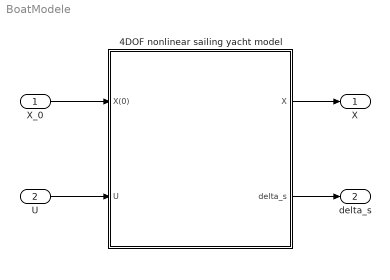
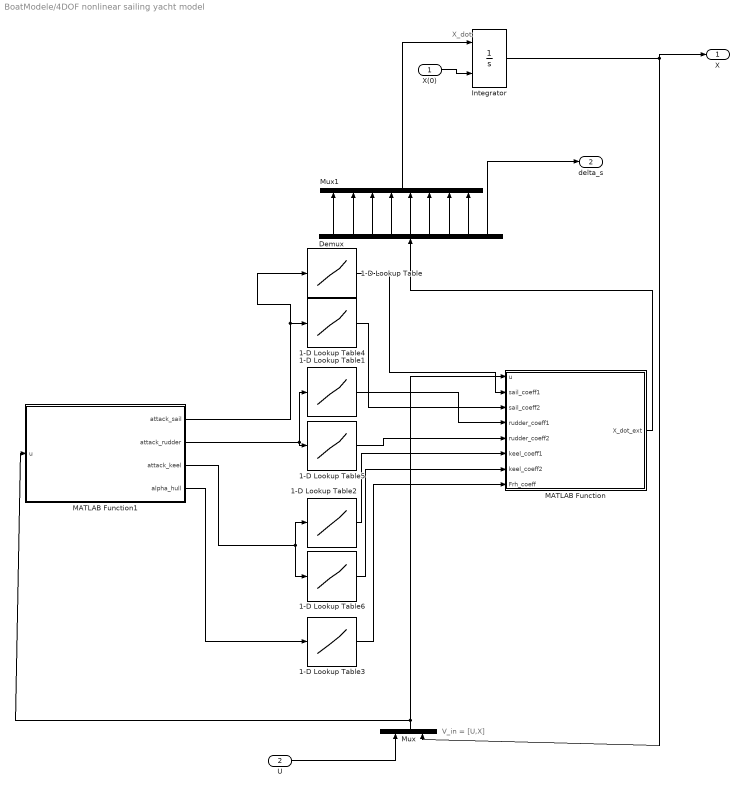
== matlab function BoatModele/4DOF nonlinear sailing yacht model/MATLAB Function1 ==
% interpreted Matlab function "f.m" for the Simulink file "SailingYachtModel.slx"
% This function describes the dynamics of a 4DOF sailing yacht model
% and gives the derivative of the state X and the sail angle delta_s.
% The input vector V_in contains the system state and the control input vector. 
%
% For the model description, notations, equations and parameters,
% see Xiao and Jouffroy, "Modeling and nonlinear heading control of sailing
% yachts", IEEE Journal of Oceanic Engineering, vol. 39, no. 2., pp. 256-268, 2014.
% 
% Jerome Jouffroy, Jiaxi He and Lin Xiao, 2014.
% University of Southern Denmark.



function [attack_sail,attack_rudder,attack_keel,alpha_hull]=sailcoeff_attack(u)
%#codegen

% use the system parameters
par = modeleBoat();

V_in = u;
% retrieve the system state from the field input vector "V_in"
x = V_in(5);
y = V_in(6);
phi = V_in(7);
psi = V_in(8);
u = V_in(9);
v = V_in(10);
p = V_in(11);
r = V_in(12);
nu = [ u ; v ; p ; r ];

% retrieve the input signals from the vector "V_in"
delta_r = V_in(1);
delta_sbar = V_in(2);
y_w = V_in(3);
u_s = V_in(4);


% evaluate the matrix M and C in the model
M_RB = [ par.m 0 0 0 ; 0 par.m 0 0 ; 0 0 par.Ixx -par.Ixz ; 0 0 -par.Ixz par.Izz];
C_RB = [0 -par.m*r 0 0 ; par.m*r 0 0 0 ; 0 0 0 0 ; 0 0 0 0];

M_A = [par.a11 0 0 0;0 par.a22 par.a24 par.a26;0 par.a24 par.a44 par.a46;0 par.a26 par.a46 par.a66];
C_A = [0  0 0 -par.a22*nu(2)-par.a24*nu(3)-par.a26*nu(4) ; 0 0 0 par.a11*nu(1) ; 0 0 0 0 ; par.a22*nu(2)+par.a24*nu(3)+par.a26*nu(4) -par.a11*nu(1) 0 0];

M = M_RB + M_A;

% calculate the tau vector, ie forces and moments generated from:
% the sail
v_t = [ par.vt*cos(par.alpha_w); par.vt*sin(par.alpha_w); 0 ];
v_tw = log(abs(par.z_s)*cos(phi)/par.h0)/log(par.h1/par.h0)*v_t;
R1 = [ cos(-psi) -sin(-psi) 0; sin(-psi) cos(-psi) 0; 0 0 1];
R2 = [ 1 0 0 ; 0 cos(-phi) -sin(-phi); 0 sin(-phi) cos(-phi)];
v_tb = R2*R1*v_tw; % wind expressed in the body frame
V_in = [ u ; v ; 0 ];
V_awb = v_tb - V_in - cross([p;0;r],[par.xs;par.ys;par.zs]);
V_awu = V_awb(1);
V_awv = V_awb(2);
alpha_aw = atan2(V_awv,-V_awu);

%% (sail luffing or not)
if alpha_aw-u_s>delta_sbar
    delta_s = delta_sbar;
elseif alpha_aw-u_s<-delta_sbar
    delta_s = -delta_sbar;
else
    delta_s = alpha_aw-u_s;
end
delta_s = delta_s + u_s;

alpha_as = alpha_aw - delta_s;

attack_sail = alpha_as;

% fit the input angle of attack into the interval [-pi,pi]
if attack_sail > pi
    attack_sail = mod(attack_sail+pi,2*pi) - pi;
else
    if attack_sail < -pi
        attack_sail = mod(attack_sail-pi,-2*pi) + pi;
    end
end

%% the rudder
v_aru = -u+r*par.yr;
v_arv = -v-r*par.xr + p*par.zr;
alpha_ar = atan2(v_arv,-v_aru);
alpha_a = alpha_ar-delta_r;

attack_rudder = alpha_a;

% fit the input angle of attack into the interval [-pi,pi]
if attack_rudder > pi
    attack_rudder = mod(attack_rudder+pi,2*pi) - pi;
else
    if attack_rudder < -pi
        attack_rudder = mod(attack_rudder-pi,-2*pi) + pi;
    end
end

%% the keel
v_aku = -u + r*par.yk;
v_akv = -v - r*par.xk+p*par.zk;
alpha_ak = atan2(v_akv,-v_aku);
alpha_e = alpha_ak;

attack_keel = alpha_e;

% fit the input angle of attack into the interval [-pi,pi]
if attack_keel > pi
    attack_keel = mod(attack_keel+pi,2*pi) - pi;
else
    if attack_keel < -pi
        attack_keel = mod(attack_keel-pi,-2*pi) + pi;
    end
end

%% from the hull
v_ahu = -u + r*par.yh;
v_ahv = (-v-r*par.xh + p*par.zh)/cos(phi);
v_ah = sqrt(v_aku^2+v_akv^2);
alpha_ah = atan2(v_ahv,-v_ahu);
alpha_hull = v_ah;

== matlab function BoatModele/4DOF nonlinear sailing yacht model/MATLAB Function ==
% interpreted Matlab function "f.m" for the Simulink file "SailingYachtModel.slx"
% This function describes the dynamics of a 4DOF sailing yacht model
% and gives the derivative of the state X and the sail angle delta_s.
% The input vector V_in contains the system state and the control input vector. 
%
% For the model description, notations, equations and parameters,
% see Xiao and Jouffroy, "Modeling and nonlinear heading control of sailing
% yachts", IEEE Journal of Oceanic Engineering, vol. 39, no. 2., pp. 256-268, 2014.
% 
% Jerome Jouffroy, Jiaxi He and Lin Xiao, 2014.
% University of Southern Denmark.



function X_dot_ext  =fcn(u,sail_coeff1,sail_coeff2,rudder_coeff1,rudder_coeff2,keel_coeff1,keel_coeff2,Frh_coeff)
%#codegen

% use the system parameters
par = modeleBoat();

V_in = u;
% retrieve the system state from the field input vector "V_in"
x = V_in(5);
y = V_in(6);
phi = V_in(7);
psi = V_in(8);
u = V_in(9);
v = V_in(10);
p = V_in(11);
r = V_in(12);
nu = [ u ; v ; p ; r ];

% retrieve the input signals from the vector "V_in"
delta_r = V_in(1);
delta_sbar = V_in(2);
y_w = V_in(3);
u_s = V_in(4);

% evaluate the matrix M and C in the model
M_RB = [ par.m 0 0 0 ; 0 par.m 0 0 ; 0 0 par.Ixx -par.Ixz ; 0 0 -par.Ixz par.Izz];
C_RB = [0 -par.m*r 0 0 ; par.m*r 0 0 0 ; 0 0 0 0 ; 0 0 0 0];

M_A = [par.a11 0 0 0;0 par.a22 par.a24 par.a26;0 par.a24 par.a44 par.a46;0 par.a26 par.a46 par.a66];
C_A = [0  0 0 -par.a22*nu(2)-par.a24*nu(3)-par.a26*nu(4) ; 0 0 0 par.a11*nu(1) ; 0 0 0 0 ; par.a22*nu(2)+par.a24*nu(3)+par.a26*nu(4) -par.a11*nu(1) 0 0];

M = M_RB + M_A;

% calculate the tau vector, ie forces and moments generated from:
% the sail
v_t = [ par.vt*cos(par.alpha_w); par.vt*sin(par.alpha_w); 0 ];
v_tw = log(abs(par.z_s)*cos(phi)/par.h0)/log(par.h1/par.h0)*v_t;
R1 = [ cos(-psi) -sin(-psi) 0; sin(-psi) cos(-psi) 0; 0 0 1];
R2 = [ 1 0 0 ; 0 cos(-phi) -sin(-phi); 0 sin(-phi) cos(-phi)];
v_tb = R2*R1*v_tw; % wind expressed in the body frame
V_in = [ u ; v ; 0 ];
V_awb = v_tb - V_in - cross([p;0;r],[par.xs;par.ys;par.zs]);
V_awu = V_awb(1);
V_awv = V_awb(2);
alpha_aw = atan2(V_awv,-V_awu);

% (sail luffing or not)
if alpha_aw-u_s>delta_sbar
    delta_s = delta_sbar;
elseif alpha_aw-u_s<-delta_sbar
    delta_s = -delta_sbar;
else
    delta_s = alpha_aw-u_s;
end
delta_s = delta_s + u_s;

alpha_as = alpha_aw - delta_s;

Cls = sail_coeff1;
Cds = sail_coeff2;

Ls = 0.5*par.rho_a*par.As*(V_awu^2+V_awv^2)*Cls;
Ds = 0.5*par.rho_a*par.As*(V_awu^2+V_awv^2)*Cds;

tau_sail = [Ls*sin(alpha_aw)-Ds*cos(alpha_aw); Ls*cos(alpha_aw)+Ds*sin(alpha_aw);-(Ls*cos(alpha_aw)+Ds*sin(alpha_aw))*par.zs; -(Ls*sin(alpha_aw)-Ds*cos(alpha_aw))*par.Xce*sin(delta_s)+(Ls*cos(alpha_aw)+Ds*sin(alpha_aw))*(par.Xm-par.Xce*cos(delta_s))];
Mzs = tau_sail(4);

% the rudder
v_aru = -u+r*par.yr;
v_arv = -v-r*par.xr + p*par.zr;
alpha_ar = atan2(v_arv,-v_aru);
alpha_a = alpha_ar-delta_r;

%[Clr,Cdr] = ruddercoef(alpha_a);
Clr = rudder_coeff1;
Cdr = rudder_coeff2;

Cdr = Cdr+Clr^2*par.Ar/(pi*2*par.zeta_r*par.d_r^2);

Lr = 0.5*par.rho_w*par.Ar*(v_aru^2+v_arv^2)*Clr;
Dr = 0.5*par.rho_w*par.Ar*(v_aru^2+v_arv^2)*Cdr;

tau_rudder = [Lr*sin(alpha_ar)-Dr*cos(alpha_ar); Lr*cos(alpha_ar)+Dr*sin(alpha_ar); -(Lr*cos(alpha_ar)+Dr*sin(alpha_ar))*par.zr; (Lr*cos(alpha_ar)+Dr*sin(alpha_ar))*par.xr];
Mzr = tau_rudder(4);

% the tau vector is finally given by:
tau = tau_sail + tau_rudder;

% calculate the damping forces and moments:
% from the keel
v_aku = -u + r*par.yk;
v_akv = -v - r*par.xk+p*par.zk;
alpha_ak = atan2(v_akv,-v_aku);
alpha_e = alpha_ak;

Clk = keel_coeff1;
Cdk = keel_coeff2;

Cdk = Cdk + Clk^2*par.Ak/(pi*2*par.zeta_k*par.d_k^2);

Lk = 0.5*par.rho_w*par.Ak*(v_aku^2+v_akv^2)*Clk;
Dk = 0.5*par.rho_w*par.Ak*(v_aku^2+v_akv^2)*Cdk;

D_keel = [ -Lk*sin(alpha_ak)+Dk*cos(alpha_ak); -Lk*cos(alpha_ak)-Dk*sin(alpha_ak); -(-Lk*cos(alpha_ak)-Dk*sin(alpha_ak))*par.zk; -(Lk*cos(alpha_ak)+Dk*sin(alpha_ak))*par.xk];

% from the hull
v_ahu = -u + r*par.yh;
v_ahv = (-v-r*par.xh + p*par.zh)/cos(phi);
v_ah = sqrt(v_aku^2+v_akv^2);
alpha_ah = atan2(v_ahv,-v_ahu);

Frh = Frh_coeff;

D_hull = [Frh*cos(alpha_ah);-Frh*sin(alpha_ah)*cos(phi); Frh*sin(alpha_ah)*cos(phi)*par.zh; -Frh*sin(alpha_ah)*cos(phi)*par.xh];

% from heel and yaw
% (compute first eta_dot and thereby phi_dot and psi_dot)
J = [cos(psi) -sin(psi)*cos(phi) 0 0; sin(psi) cos(psi)*cos(phi) 0 0; 0 0 1 0; 0 0 0 cos(phi)];
eta_dot = J*nu;
phi_dot = eta_dot(3);
psi_dot = eta_dot(4);

D_heelandyaw = [0;0;par.c*phi_dot*abs(phi_dot);par.d*psi_dot*abs(psi_dot)*cos(phi)]; 

% compute total damping vector D
D = D_keel + D_hull + D_heelandyaw;

% righting moment plus internal moving mass system (ie transversal weight)
phi_deg = phi*180/pi;
M_xw = -y_w*par.w_c*par.y_bm*cos(phi);
M_zw = -y_w*par.w_c*par.x_c*sin(abs(phi));
G = [ 0 ; 0 ; par.a*phi_deg^2+par.b*phi_deg + M_xw ; M_zw];

% computation of nu_dot
nu_dot = -M\(C_RB*nu+C_A*nu)-M\D-M\G+M\tau; 
 

% output the derivative of the state extended with the sail angle
X_dot_ext = [ eta_dot   ; 
              nu_dot   ;
              delta_s];

/*
 * BoatModele.cpp
 *
 * Code generation for model "BoatModele".
 *
 * Model version              : 1.11
 * Simulink Coder version : 8.6 (R2014a) 27-Dec-2013
 * C++ source code generated on : Sun May  3 10:05:32 2015
 *
 * Target selection: grt.tlc
 * Note: GRT includes extra infrastructure and instrumentation for prototyping
 * Embedded hardware selection: 32-bit Generic
 * Code generation objectives: Unspecified
 * Validation result: Not run
 */
#include "BoatModele.h"
#include "BoatModele_private.h"

/* Block signals (auto storage) */
B_BoatModele_T BoatModele_B;

/* Continuous states */
X_BoatModele_T BoatModele_X;

/* Block states (auto storage) */
DW_BoatModele_T BoatModele_DW;

/* External inputs (root inport signals with auto storage) */
ExtU_BoatModele_T BoatModele_U;

/* External outputs (root outports fed by signals with auto storage) */
ExtY_BoatModele_T BoatModele_Y;

/* Real-time model */
RT_MODEL_BoatModele_T BoatModele_M_;
RT_MODEL_BoatModele_T *const BoatModele_M = &BoatModele_M_;

/* Forward declaration for local functions */
static void BoatModele_mldivide(const real_T A[16], real_T B[4]);

/* n-D Spline interpolation function */
real_T look_SplNBinXZcd(uint32_T numDims, const real_T* u, const
  rt_LUTSplineWork * const SWork)
{
  /*
   *   n-D column-major table lookup operating on real_T with:
   *       - Spline interpolation
   *       - Linear extrapolation
   *       - Binary breakpoint search
   *       - Index search starts at the same place each time
   */
  rt_LUTnWork * const TWork_look = SWork->m_TWork;
  real_T* const fraction = (real_T*) TWork_look->m_bpLambda;
  uint32_T* const bpIdx = TWork_look->m_bpIndex;
  const uint32_T* const maxIndex = TWork_look->m_maxIndex;
  uint32_T k;
  for (k = 0U; k < numDims; k++) {
    const real_T* const bpData = ((const real_T * const *)
      TWork_look->m_bpDataSet)[k];
    bpIdx[k] = plook_binx(u[k], &bpData[0], maxIndex[k], &fraction[k]);
  }

  return(intrp_NSplcd(numDims, SWork, 2U));
}

/*
 * Second derivative initialization function for spline
 * for last dimension.
 */
void rt_Spline2Derivd(const real_T *x, const real_T *y, uint32_T n, real_T *u,
                      real_T *y2)
{
  real_T p, qn, sig, un;
  uint32_T n1, i, k;
  n1 = n - 1U;
  y2[0U] = 0.0;
  u[0U] = 0.0;
  for (i = 1U; i < n1; i++) {
    real_T dxm1 = x[i] - x[i - 1U];
    real_T dxp1 = x[i + 1U] - x[i];
    real_T dxpm = dxp1 + dxm1;
    sig = dxm1 / dxpm;
    p = (sig * y2[i - 1U]) + 2.0;
    y2[i] = (sig - 1.0) / p;
    u[i] = ((y[i + 1U] - y[i]) / dxp1) - ((y[i] - y[i - 1U]) / dxm1);
    u[i] = (((6.0 * u[i]) / dxpm) - (sig * u[i - 1U])) / p;
  }

  qn = 0.0;
  un = 0.0;
  y2[n1] = (un - (qn * u[n1 - 1U])) / ((qn * y2[n1 - 1U]) + 1.0);
  for (k = n1; k > 0U; k--) {
    y2[k-1U] = (y2[k-1U] * y2[k]) + u[k-1U];
  }

  return;
}

/* n-D natural spline calculation function */
real_T intrp_NSplcd(uint32_T numDims, const rt_LUTSplineWork * const splWork,
                    uint32_T extrapMethod)
{
  uint32_T il;
  uint32_T iu, k, i;
  real_T h, s, p, smsq, pmsq;

  /* intermediate results work areas "this" and "next" */
  const rt_LUTnWork *TWork_interp = (const rt_LUTnWork *)splWork->m_TWork;
  const real_T *fraction = (real_T *) TWork_interp->m_bpLambda;
  const real_T *yp = (real_T *) TWork_interp->m_tableData;
  real_T *yyA = (real_T *) splWork->m_yyA;
  real_T *yyB = (real_T *) splWork->m_yyB;
  real_T *yy2 = (real_T *) splWork->m_yy2;
  real_T *up = (real_T *) splWork->m_up;
  real_T *y2 = (real_T *) splWork->m_y2;
  const real_T **bpDataSet = (const real_T **) TWork_interp->m_bpDataSet;
  const real_T *xp = bpDataSet[0U];
  real_T *yy = yyA;
  uint32_T bufBank = 0U;
  uint32_T len = TWork_interp->m_maxIndex[0U] + 1U;

  /* If table and bps are tunable calculate 1st dim 2nd deriv */
  /* Generate first dimension's second derivatives */
  for (i = 0U; i < splWork->m_numYWorkElts[0U]; i++) {
    rt_Spline2Derivd(xp, yp, len, up, y2);
    yp = &yp[len];
    y2 = &y2[len];
  }

  /* Set pointers back to beginning */
  yp = (const real_T *) TWork_interp->m_tableData;
  y2 = (real_T *) splWork->m_y2;

  /* Generate at-point splines in each dimension */
  for (k = 0U; k < numDims; k++ ) {
    /* this dimension's input setup */
    xp = bpDataSet[k];
    len = TWork_interp->m_maxIndex[k] + 1U;
    il = TWork_interp->m_bpIndex[k];
    iu = il + 1U;
    h = xp[iu] - xp[il];
    p = fraction[k];
    s = 1.0 - p;
    pmsq = p * ((p*p) - 1.0);
    smsq = s * ((s*s) - 1.0);

    /*
     * Calculate spline curves for input in this
     * dimension at each value of the higher
     * other dimensions\' points in the table.
     */
    if ((p > 1.0) && (extrapMethod == 2U) ) {
      real_T slope;
      for (i = 0U; i < splWork->m_numYWorkElts[k]; i++) {
        slope = (yp[iu] - yp[il]) + ((y2[il]*h*h)*(1.0/6.0));
        yy[i] = yp[iu] + (slope * (p-1.0));
        yp = &yp[len];
        y2 = &y2[len];
      }
    } else if ((p < 0.0) && (extrapMethod == 2U) ) {
      real_T slope;
      for (i = 0U; i < splWork->m_numYWorkElts[k]; i++) {
        slope = (yp[iu] - yp[il]) - ((y2[iu]*h*h)*(1.0/6.0));
        yy[i] = yp[il] + (slope * p);
        yp = &yp[len];
        y2 = &y2[len];
      }
    } else {
      for (i = 0U; i < splWork->m_numYWorkElts[k]; i++) {
        yy[i] = yp[il] + p * (yp[iu] - yp[il]) +
          ((smsq * y2[il] + pmsq * y2[iu])*h*h)*(1.0/6.0);
        yp = &yp[len];
        y2 = &y2[len];
      }
    }

    /* set pointers to new result and calculate second derivatives */
    yp = yy;
    y2 = yy2;
    if (splWork->m_numYWorkElts[k+1U] > 0U ) {
      uint32_T nextLen = TWork_interp->m_maxIndex[k+1U] + 1U;
      const real_T *nextXp = bpDataSet[k+1U];
      for (i = 0U; i < splWork->m_numYWorkElts[k+1U]; i++) {
        rt_Spline2Derivd(nextXp, yp, nextLen, up, y2);
        yp = &yp[nextLen];
        y2 = &y2[nextLen];
      }
    }

    /*
     * Set work vectors yp, y2 and yy for next iteration;
     * the yy just calculated becomes the yp in the
     * next iteration, y2 was just calculated for these
     * new points and the yy buffer is swapped to the space
     * for storing the next iteration\'s results.
     */
    yp = yy;
    y2 = yy2;

    /*
     * Swap buffers for next dimension and
     * toggle bufBank for next iteration.
     */
    if (bufBank == 0U) {
      yy = yyA;
      bufBank = 1U;
    } else {
      yy = yyB;
      bufBank = 0U;
    }
  }

  return( yp[0U] );
}

real_T look1_binlxpw(real_T u0, const real_T bp0[], const real_T table[],
                     uint32_T maxIndex)
{
  real_T frac;
  uint32_T iRght;
  uint32_T iLeft;
  uint32_T bpIdx;

  /* Lookup 1-D
     Search method: 'binary'
     Use previous index: 'off'
     Interpolation method: 'Linear'
     Extrapolation method: 'Linear'
     Use last breakpoint for index at or above upper limit: 'off'
     Remove protection against out-of-range input in generated code: 'off'
   */
  /* Prelookup - Index and Fraction
     Index Search method: 'binary'
     Extrapolation method: 'Linear'
     Use previous index: 'off'
     Use last breakpoint for index at or above upper limit: 'off'
     Remove protection against out-of-range input in generated code: 'off'
   */
  if (u0 <= bp0[0U]) {
    iLeft = 0U;
    frac = (u0 - bp0[0U]) / (bp0[1U] - bp0[0U]);
  } else if (u0 < bp0[maxIndex]) {
    /* Binary Search */
    bpIdx = maxIndex >> 1U;
    iLeft = 0U;
    iRght = maxIndex;
    while (iRght - iLeft > 1U) {
      if (u0 < bp0[bpIdx]) {
        iRght = bpIdx;
      } else {
        iLeft = bpIdx;
      }

      bpIdx = (iRght + iLeft) >> 1U;
    }

    frac = (u0 - bp0[iLeft]) / (bp0[iLeft + 1U] - bp0[iLeft]);
  } else {
    iLeft = maxIndex - 1U;
    frac = (u0 - bp0[maxIndex - 1U]) / (bp0[maxIndex] - bp0[maxIndex - 1U]);
  }

  /* Interpolation 1-D
     Interpolation method: 'Linear'
     Use last breakpoint for index at or above upper limit: 'off'
     Overflow mode: 'portable wrapping'
   */
  return (table[iLeft + 1U] - table[iLeft]) * frac + table[iLeft];
}

uint32_T plook_binx(real_T u, const real_T bp[], uint32_T maxIndex, real_T
                    *fraction)
{
  uint32_T bpIndex;

  /* Prelookup - Index and Fraction
     Index Search method: 'binary'
     Extrapolation method: 'Linear'
     Use previous index: 'off'
     Use last breakpoint for index at or above upper limit: 'off'
     Remove protection against out-of-range input in generated code: 'off'
   */
  if (u <= bp[0U]) {
    bpIndex = 0U;
    *fraction = (u - bp[0U]) / (bp[1U] - bp[0U]);
  } else if (u < bp[maxIndex]) {
    bpIndex = binsearch_u32d(u, bp, maxIndex >> 1U, maxIndex);
    *fraction = (u - bp[bpIndex]) / (bp[bpIndex + 1U] - bp[bpIndex]);
  } else {
    bpIndex = maxIndex - 1U;
    *fraction = (u - bp[maxIndex - 1U]) / (bp[maxIndex] - bp[maxIndex - 1U]);
  }

  return bpIndex;
}

uint32_T binsearch_u32d(real_T u, const real_T bp[], uint32_T startIndex,
  uint32_T maxIndex)
{
  uint32_T iRght;
  uint32_T iLeft;
  uint32_T bpIdx;

  /* Binary Search */
  bpIdx = startIndex;
  iLeft = 0U;
  iRght = maxIndex;
  while (iRght - iLeft > 1U) {
    if (u < bp[bpIdx]) {
      iRght = bpIdx;
    } else {
      iLeft = bpIdx;
    }

    bpIdx = (iRght + iLeft) >> 1U;
  }

  return iLeft;
}

/*
 * This function updates continuous states using the ODE3 fixed-step
 * solver algorithm
 */
static void rt_ertODEUpdateContinuousStates(RTWSolverInfo *si )
{
  /* Solver Matrices */
  static const real_T rt_ODE3_A[3] = {
    1.0/2.0, 3.0/4.0, 1.0
  };

  static const real_T rt_ODE3_B[3][3] = {
    { 1.0/2.0, 0.0, 0.0 },

    { 0.0, 3.0/4.0, 0.0 },

    { 2.0/9.0, 1.0/3.0, 4.0/9.0 }
  };

  time_T t = rtsiGetT(si);
  time_T tnew = rtsiGetSolverStopTime(si);
  time_T h = rtsiGetStepSize(si);
  real_T *x = rtsiGetContStates(si);
  ODE3_IntgData *id = (ODE3_IntgData *)rtsiGetSolverData(si);
  real_T *y = id->y;
  real_T *f0 = id->f[0];
  real_T *f1 = id->f[1];
  real_T *f2 = id->f[2];
  real_T hB[3];
  int_T i;
  int_T nXc = 8;
  rtsiSetSimTimeStep(si,MINOR_TIME_STEP);

  /* Save the state values at time t in y, we'll use x as ynew. */
  (void) memcpy(y, x,
                (uint_T)nXc*sizeof(real_T));

  /* Assumes that rtsiSetT and ModelOutputs are up-to-date */
  /* f0 = f(t,y) */
  rtsiSetdX(si, f0);
  BoatModele_derivatives();

  /* f(:,2) = feval(odefile, t + hA(1), y + f*hB(:,1), args(:)(*)); */
  hB[0] = h * rt_ODE3_B[0][0];
  for (i = 0; i < nXc; i++) {
    x[i] = y[i] + (f0[i]*hB[0]);
  }

  rtsiSetT(si, t + h*rt_ODE3_A[0]);
  rtsiSetdX(si, f1);
  BoatModele_step();
  BoatModele_derivatives();

  /* f(:,3) = feval(odefile, t + hA(2), y + f*hB(:,2), args(:)(*)); */
  for (i = 0; i <= 1; i++) {
    hB[i] = h * rt_ODE3_B[1][i];
  }

  for (i = 0; i < nXc; i++) {
    x[i] = y[i] + (f0[i]*hB[0] + f1[i]*hB[1]);
  }

  rtsiSetT(si, t + h*rt_ODE3_A[1]);
  rtsiSetdX(si, f2);
  BoatModele_step();
  BoatModele_derivatives();

  /* tnew = t + hA(3);
     ynew = y + f*hB(:,3); */
  for (i = 0; i <= 2; i++) {
    hB[i] = h * rt_ODE3_B[2][i];
  }

  for (i = 0; i < nXc; i++) {
    x[i] = y[i] + (f0[i]*hB[0] + f1[i]*hB[1] + f2[i]*hB[2]);
  }

  rtsiSetT(si, tnew);
  rtsiSetSimTimeStep(si,MAJOR_TIME_STEP);
}

real_T rt_atan2d_snf(real_T u0, real_T u1)
{
  real_T y;
  int32_T u0_0;
  int32_T u1_0;
  if (rtIsNaN(u0) || rtIsNaN(u1)) {
    y = (rtNaN);
  } else if (rtIsInf(u0) && rtIsInf(u1)) {
    if (u0 > 0.0) {
      u0_0 = 1;
    } else {
      u0_0 = -1;
    }

    if (u1 > 0.0) {
      u1_0 = 1;
    } else {
      u1_0 = -1;
    }

    y = atan2((real_T)u0_0, (real_T)u1_0);
  } else if (u1 == 0.0) {
    if (u0 > 0.0) {
      y = RT_PI / 2.0;
    } else if (u0 < 0.0) {
      y = -(RT_PI / 2.0);
    } else {
      y = 0.0;
    }
  } else {
    y = atan2(u0, u1);
  }

  return y;
}

real_T rt_roundd_snf(real_T u)
{
  real_T y;
  if (fabs(u) < 4.503599627370496E+15) {
    if (u >= 0.5) {
      y = floor(u + 0.5);
    } else if (u > -0.5) {
      y = u * 0.0;
    } else {
      y = ceil(u - 0.5);
    }
  } else {
    y = u;
  }

  return y;
}

/* Function for MATLAB Function: '<S1>/MATLAB Function' */
static void BoatModele_mldivide(const real_T A[16], real_T B[4])
{
  real_T temp;
  real_T b_A[16];
  int8_T ipiv[4];
  int32_T j;
  int32_T c;
  int32_T ix;
  real_T s;
  int32_T jy;
  int32_T c_ix;
  int32_T d;
  int32_T ijA;
  int32_T b_kAcol;
  memcpy(&b_A[0], &A[0], sizeof(real_T) << 4U);
  ipiv[0] = 1;
  ipiv[1] = 2;
  ipiv[2] = 3;
  for (j = 0; j < 3; j++) {
    c = j * 5;
    jy = 0;
    ix = c;
    temp = fabs(b_A[c]);
    for (b_kAcol = 2; b_kAcol <= 4 - j; b_kAcol++) {
      ix++;
      s = fabs(b_A[ix]);
      if (s > temp) {
        jy = b_kAcol - 1;
        temp = s;
      }
    }

    if (b_A[c + jy] != 0.0) {
      if (jy != 0) {
        ipiv[j] = (int8_T)((j + jy) + 1);
        b_kAcol = j + jy;
        temp = b_A[j];
        b_A[j] = b_A[b_kAcol];
        b_A[b_kAcol] = temp;
        ix = j + 4;
        b_kAcol += 4;
        temp = b_A[ix];
        b_A[ix] = b_A[b_kAcol];
        b_A[b_kAcol] = temp;
        ix += 4;
        b_kAcol += 4;
        temp = b_A[ix];
        b_A[ix] = b_A[b_kAcol];
        b_A[b_kAcol] = temp;
        ix += 4;
        b_kAcol += 4;
        temp = b_A[ix];
        b_A[ix] = b_A[b_kAcol];
        b_A[b_kAcol] = temp;
      }

      ix = (c - j) + 4;
      for (b_kAcol = c + 1; b_kAcol + 1 <= ix; b_kAcol++) {
        b_A[b_kAcol] /= b_A[c];
      }
    }

    b_kAcol = c;
    jy = c + 4;
    for (ix = 1; ix <= 3 - j; ix++) {
      temp = b_A[jy];
      if (b_A[jy] != 0.0) {
        c_ix = c + 1;
        d = (b_kAcol - j) + 8;
        for (ijA = 5 + b_kAcol; ijA + 1 <= d; ijA++) {
          b_A[ijA] += b_A[c_ix] * -temp;
          c_ix++;
        }
      }

      jy += 4;
      b_kAcol += 4;
    }
  }

  if (ipiv[0] != 1) {
    temp = B[0];
    B[0] = B[ipiv[0] - 1];
    B[ipiv[0] - 1] = temp;
  }

  if (ipiv[1] != 2) {
    temp = B[1];
    B[1] = B[ipiv[1] - 1];
    B[ipiv[1] - 1] = temp;
  }

  if (ipiv[2] != 3) {
    temp = B[2];
    B[2] = B[ipiv[2] - 1];
    B[ipiv[2] - 1] = temp;
  }

  if (B[0] != 0.0) {
    for (jy = 1; jy + 1 < 5; jy++) {
      B[jy] -= B[0] * b_A[jy];
    }
  }

  if (B[1] != 0.0) {
    for (jy = 2; jy + 1 < 5; jy++) {
      B[jy] -= b_A[jy + 4] * B[1];
    }
  }

  if (B[2] != 0.0) {
    for (jy = 3; jy + 1 < 5; jy++) {
      B[jy] -= b_A[jy + 8] * B[2];
    }
  }

  if (B[3] != 0.0) {
    B[3] /= b_A[15];
    for (jy = 0; jy + 1 < 4; jy++) {
      B[jy] -= b_A[jy + 12] * B[3];
    }
  }

  if (B[2] != 0.0) {
    B[2] /= b_A[10];
    for (jy = 0; jy + 1 < 3; jy++) {
      B[jy] -= b_A[jy + 8] * B[2];
    }
  }

  if (B[1] != 0.0) {
    B[1] /= b_A[5];
    for (jy = 0; jy + 1 < 2; jy++) {
      B[jy] -= b_A[jy + 4] * B[1];
    }
  }

  if (B[0] != 0.0) {
    B[0] /= b_A[0];
  }
}

/* Model step function */
void BoatModele_step(void)
{
  /* local block i/o variables */
  real_T rtb_Integrator[8];
  real_T rtb_DLookupTable;
  real_T rtb_DLookupTable4;
  real_T rtb_DLookupTable1;
  real_T rtb_DLookupTable5;
  real_T rtb_DLookupTable2;
  real_T rtb_DLookupTable6;
  real_T rtb_attack_sail;
  real_T rtb_attack_rudder;
  real_T rtb_attack_keel;
  real_T alpha_aw;
  real_T delta_s;
  real_T alpha_as;
  real_T v_aku;
  real_T v_akv;
  real_T alpha_ak;
  real_T nu[4];
  real_T Ls;
  real_T Ds;
  real_T alpha_ar;
  real_T Lr;
  real_T Dr;
  real_T Lk;
  real_T D_hull[4];
  real_T eta_dot[4];
  real_T nu_dot[4];
  static const real_T b[16] = { 26870.0, 0.0, 0.0, 0.0, 0.0, 43330.0, -13160.0,
    -6190.0, 0.0, -13160.0, 240190.0, 2550.0, 0.0, -6190.0, 2550.0, 126410.0 };

  static const real_T c[16] = { -26870.0, -0.0, -0.0, -0.0, -0.0, -43330.0,
    13160.0, 6190.0, -0.0, 13160.0, -240190.0, -2550.0, -0.0, 6190.0, -2550.0,
    -126410.0 };

  real_T g[4];
  real_T rtb_TmpSignalConversionAtSFunct[12];
  real_T rtb_DLookupTable3;
  int32_T i;
  real_T c_0[9];
  real_T tmp[9];
  real_T c_1[9];
  real_T c_2[3];
  real_T e[9];
  real_T tmp_0[9];
  int32_T i_0;
  real_T tmp_1[16];
  real_T tmp_2[16];
  real_T tmp_3[16];
  real_T tmp_4[4];
  real_T tmp_5[4];
  real_T V_awb_idx_1;
  if (rtmIsMajorTimeStep(BoatModele_M)) {
    /* set solver stop time */
    if (!(BoatModele_M->Timing.clockTick0+1)) {
      rtsiSetSolverStopTime(&BoatModele_M->solverInfo,
                            ((BoatModele_M->Timing.clockTickH0 + 1) *
        BoatModele_M->Timing.stepSize0 * 4294967296.0));
    } else {
      rtsiSetSolverStopTime(&BoatModele_M->solverInfo,
                            ((BoatModele_M->Timing.clockTick0 + 1) *
        BoatModele_M->Timing.stepSize0 + BoatModele_M->Timing.clockTickH0 *
        BoatModele_M->Timing.stepSize0 * 4294967296.0));
    }
  }                                    /* end MajorTimeStep */

  /* Update absolute time of base rate at minor time step */
  if (rtmIsMinorTimeStep(BoatModele_M)) {
    BoatModele_M->Timing.t[0] = rtsiGetT(&BoatModele_M->solverInfo);
  }

  /* Integrator: '<S1>/Integrator' */
  if (BoatModele_DW.Integrator_IWORK.IcNeedsLoading) {
    {
      int_T i1;
      real_T *xc = &BoatModele_X.Integrator_CSTATE[0];
      const real_T *u1 = &BoatModele_U.X_0[0];
      for (i1=0; i1 < 8; i1++) {
        xc[i1] = u1[i1];
      }
    }
  }

  {
    int_T i1;
    real_T *y0 = &rtb_Integrator[0];
    real_T *xc = &BoatModele_X.Integrator_CSTATE[0];
    for (i1=0; i1 < 8; i1++) {
      y0[i1] = xc[i1];
    }
  }

  /* SignalConversion: '<S3>/TmpSignal ConversionAt SFunction Inport1' incorporates:
   *  Inport: '<Root>/U'
   *  MATLAB Function: '<S1>/MATLAB Function1'
   */
  rtb_TmpSignalConversionAtSFunct[0] = BoatModele_U.U[0];
  rtb_TmpSignalConversionAtSFunct[1] = BoatModele_U.U[1];
  rtb_TmpSignalConversionAtSFunct[3] = BoatModele_U.U[3];
  for (i = 0; i < 8; i++) {
    /* Outport: '<Root>/X' */
    BoatModele_Y.X[i] = rtb_Integrator[i];
    rtb_TmpSignalConversionAtSFunct[i + 4] = rtb_Integrator[i];
  }

  /* End of SignalConversion: '<S3>/TmpSignal ConversionAt SFunction Inport1' */

  /* MATLAB Function: '<S1>/MATLAB Function1' */
  /* MATLAB Function '4DOF nonlinear sailing yacht model/MATLAB Function1': '<S3>:1' */
  /*  interpreted Matlab function "f.m" for the Simulink file "SailingYachtModel.slx" */
  /*  This function describes the dynamics of a 4DOF sailing yacht model */
  /*  and gives the derivative of the state X and the sail angle delta_s. */
  /*  The input vector V_in contains the system state and the control input vector.  */
  /*  */
  /*  For the model description, notations, equations and parameters, */
  /*  see Xiao and Jouffroy, "Modeling and nonlinear heading control of sailing */
  /*  yachts", IEEE Journal of Oceanic Engineering, vol. 39, no. 2., pp. 256-268, 2014. */
  /*   */
  /*  Jerome Jouffroy, Jiaxi He and Lin Xiao, 2014. */
  /*  University of Southern Denmark. */
  /*  use the system parameters */
  /*  retrieve the system state from the field input vector "V_in" */
  /* '<S3>:1:25' */
  /* '<S3>:1:26' */
  /* '<S3>:1:27' */
  /* '<S3>:1:28' */
  /* '<S3>:1:29' */
  /* '<S3>:1:30' */
  /*  retrieve the input signals from the vector "V_in" */
  /* '<S3>:1:34' */
  /* '<S3>:1:35' */
  /* '<S3>:1:37' */
  /*  evaluate the matrix M and C in the model */
  /*  calculate the tau vector, ie forces and moments generated from: */
  /*  the sail */
  /* '<S3>:1:52' */
  alpha_as = log(11.58 * cos(rtb_TmpSignalConversionAtSFunct[6]) / 0.0005) /
    10.050181931686932;

  /* '<S3>:1:53' */
  /* '<S3>:1:54' */
  /* '<S3>:1:55' */
  /*  wind expressed in the body frame */
  /* '<S3>:1:56' */
  /* '<S3>:1:57' */
  c_0[0] = 1.0;
  c_0[3] = 0.0;
  c_0[6] = 0.0;
  c_0[1] = 0.0;
  c_0[4] = cos(-rtb_TmpSignalConversionAtSFunct[6]);
  c_0[7] = -sin(-rtb_TmpSignalConversionAtSFunct[6]);
  c_0[2] = 0.0;
  c_0[5] = sin(-rtb_TmpSignalConversionAtSFunct[6]);
  c_0[8] = cos(-rtb_TmpSignalConversionAtSFunct[6]);
  tmp[0] = cos(-rtb_TmpSignalConversionAtSFunct[7]);
  tmp[3] = -sin(-rtb_TmpSignalConversionAtSFunct[7]);
  tmp[6] = 0.0;
  tmp[1] = sin(-rtb_TmpSignalConversionAtSFunct[7]);
  tmp[4] = cos(-rtb_TmpSignalConversionAtSFunct[7]);
  tmp[7] = 0.0;
  tmp[2] = 0.0;
  tmp[5] = 0.0;
  tmp[8] = 1.0;
  for (i = 0; i < 3; i++) {
    for (i_0 = 0; i_0 < 3; i_0++) {
      c_1[i + 3 * i_0] = 0.0;
      c_1[i + 3 * i_0] += tmp[3 * i_0] * c_0[i];
      c_1[i + 3 * i_0] += tmp[3 * i_0 + 1] * c_0[i + 3];
      c_1[i + 3 * i_0] += tmp[3 * i_0 + 2] * c_0[i + 6];
    }
  }

  for (i = 0; i < 3; i++) {
    c_2[i] = c_1[i + 6] * (alpha_as * 0.0) + (c_1[i + 3] * (alpha_as *
      1.2246467991473533E-15) + alpha_as * -10.0 * c_1[i]);
  }

  /* '<S3>:1:58' */
  /* '<S3>:1:59' */
  /* '<S3>:1:60' */
  alpha_aw = rt_atan2d_snf((c_2[1] - rtb_TmpSignalConversionAtSFunct[9]) -
    (rtb_TmpSignalConversionAtSFunct[11] * 0.0 -
     rtb_TmpSignalConversionAtSFunct[10] * -11.58), -((c_2[0] -
    rtb_TmpSignalConversionAtSFunct[8]) - (-0.0 -
    rtb_TmpSignalConversionAtSFunct[11] * 0.0)));

  /* % (sail luffing or not) */
  if (alpha_aw - rtb_TmpSignalConversionAtSFunct[3] >
      rtb_TmpSignalConversionAtSFunct[1]) {
    /* '<S3>:1:63' */
    /* '<S3>:1:64' */
    delta_s = rtb_TmpSignalConversionAtSFunct[1];
  } else if (alpha_aw - rtb_TmpSignalConversionAtSFunct[3] <
             -rtb_TmpSignalConversionAtSFunct[1]) {
    /* '<S3>:1:65' */
    /* '<S3>:1:66' */
    delta_s = -rtb_TmpSignalConversionAtSFunct[1];
  } else {
    /* '<S3>:1:68' */
    delta_s = alpha_aw - rtb_TmpSignalConversionAtSFunct[3];
  }

  /* '<S3>:1:70' */
  delta_s += rtb_TmpSignalConversionAtSFunct[3];

  /* '<S3>:1:72' */
  alpha_as = alpha_aw - delta_s;

  /* '<S3>:1:74' */
  rtb_attack_sail = alpha_as;

  /*  fit the input angle of attack into the interval [-pi,pi] */
  if (alpha_as > 3.1415926535897931) {
    /* '<S3>:1:77' */
    /* '<S3>:1:78' */
    alpha_as = (alpha_as + 3.1415926535897931) / 6.2831853071795862;
    if (fabs(alpha_as - rt_roundd_snf(alpha_as)) <= 2.2204460492503131E-16 *
        alpha_as) {
      alpha_as = 0.0;
    } else {
      alpha_as = (alpha_as - floor(alpha_as)) * 6.2831853071795862;
    }

    rtb_attack_sail = alpha_as - 3.1415926535897931;
  } else {
    if (alpha_as < -3.1415926535897931) {
      /* '<S3>:1:80' */
      /* '<S3>:1:81' */
      alpha_as = (alpha_as - 3.1415926535897931) / -6.2831853071795862;
      if (fabs(alpha_as - rt_roundd_snf(alpha_as)) <= 2.2204460492503131E-16 *
          alpha_as) {
        alpha_as = 0.0;
      } else {
        alpha_as = (alpha_as - floor(alpha_as)) * -6.2831853071795862;
      }

      rtb_attack_sail = alpha_as + 3.1415926535897931;
    }
  }

  /* % the rudder */
  /* '<S3>:1:86' */
  /* '<S3>:1:87' */
  /* '<S3>:1:88' */
  /* '<S3>:1:89' */
  alpha_as = rt_atan2d_snf((-rtb_TmpSignalConversionAtSFunct[9] -
    rtb_TmpSignalConversionAtSFunct[11] * -8.2) +
    rtb_TmpSignalConversionAtSFunct[10] * -0.78,
    -(rtb_TmpSignalConversionAtSFunct[11] * 0.0 +
      -rtb_TmpSignalConversionAtSFunct[8])) - rtb_TmpSignalConversionAtSFunct[0];

  /* '<S3>:1:91' */
  rtb_attack_rudder = alpha_as;

  /*  fit the input angle of attack into the interval [-pi,pi] */
  if (alpha_as > 3.1415926535897931) {
    /* '<S3>:1:94' */
    /* '<S3>:1:95' */
    alpha_as = (alpha_as + 3.1415926535897931) / 6.2831853071795862;
    if (fabs(alpha_as - rt_roundd_snf(alpha_as)) <= 2.2204460492503131E-16 *
        alpha_as) {
      alpha_as = 0.0;
    } else {
      alpha_as = (alpha_as - floor(alpha_as)) * 6.2831853071795862;
    }

    rtb_attack_rudder = alpha_as - 3.1415926535897931;
  } else {
    if (alpha_as < -3.1415926535897931) {
      /* '<S3>:1:97' */
      /* '<S3>:1:98' */
      alpha_as = (alpha_as - 3.1415926535897931) / -6.2831853071795862;
      if (fabs(alpha_as - rt_roundd_snf(alpha_as)) <= 2.2204460492503131E-16 *
          alpha_as) {
        alpha_as = 0.0;
      } else {
        alpha_as = (alpha_as - floor(alpha_as)) * -6.2831853071795862;
      }

      rtb_attack_rudder = alpha_as + 3.1415926535897931;
    }
  }

  /* % the keel */
  /* '<S3>:1:103' */
  v_aku = rtb_TmpSignalConversionAtSFunct[11] * 0.0 +
    -rtb_TmpSignalConversionAtSFunct[8];

  /* '<S3>:1:104' */
  v_akv = (-rtb_TmpSignalConversionAtSFunct[9] -
           rtb_TmpSignalConversionAtSFunct[11] * 0.0) +
    rtb_TmpSignalConversionAtSFunct[10] * -0.58;

  /* '<S3>:1:105' */
  alpha_ak = rt_atan2d_snf(v_akv, -v_aku);

  /* '<S3>:1:108' */
  rtb_attack_keel = alpha_ak;

  /*  fit the input angle of attack into the interval [-pi,pi] */
  if (alpha_ak > 3.1415926535897931) {
    /* '<S3>:1:111' */
    /* '<S3>:1:112' */
    alpha_as = (alpha_ak + 3.1415926535897931) / 6.2831853071795862;
    if (fabs(alpha_as - rt_roundd_snf(alpha_as)) <= 2.2204460492503131E-16 *
        alpha_as) {
      alpha_as = 0.0;
    } else {
      alpha_as = (alpha_as - floor(alpha_as)) * 6.2831853071795862;
    }

    rtb_attack_keel = alpha_as - 3.1415926535897931;
  } else {
    if (alpha_ak < -3.1415926535897931) {
      /* '<S3>:1:114' */
      /* '<S3>:1:115' */
      alpha_as = (alpha_ak - 3.1415926535897931) / -6.2831853071795862;
      if (fabs(alpha_as - rt_roundd_snf(alpha_as)) <= 2.2204460492503131E-16 *
          alpha_as) {
        alpha_as = 0.0;
      } else {
        alpha_as = (alpha_as - floor(alpha_as)) * -6.2831853071795862;
      }

      rtb_attack_keel = alpha_as + 3.1415926535897931;
    }
  }

  /* % from the hull */
  /* '<S3>:1:122' */
  /* '<S3>:1:124' */

  /* Lookup_n-D: '<S1>/1-D Lookup Table'
   * About '<S1>/1-D Lookup Table':
   *       Table size:  100
   *    Interpolation:  Spline
   *    Extrapolation:  Linear
   *   Breakpt Search:  Binary
   *    Breakpt Cache:  OFF
   */
  rtb_DLookupTable = look_SplNBinXZcd(1U, &rtb_attack_sail, (rt_LUTSplineWork*)
    &BoatModele_DW.SWork[0]);

  /* Lookup_n-D: '<S1>/1-D Lookup Table4'
   * About '<S1>/1-D Lookup Table4':
   *       Table size:  100
   *    Interpolation:  Spline
   *    Extrapolation:  Linear
   *   Breakpt Search:  Binary
   *    Breakpt Cache:  OFF
   */
  rtb_DLookupTable4 = look_SplNBinXZcd(1U, &rtb_attack_sail, (rt_LUTSplineWork*)
    &BoatModele_DW.SWork_k[0]);

  /* Lookup_n-D: '<S1>/1-D Lookup Table1'
   * About '<S1>/1-D Lookup Table1':
   *       Table size:  100
   *    Interpolation:  Spline
   *    Extrapolation:  Linear
   *   Breakpt Search:  Binary
   *    Breakpt Cache:  OFF
   */
  rtb_DLookupTable1 = look_SplNBinXZcd(1U, &rtb_attack_rudder, (rt_LUTSplineWork*)
    &BoatModele_DW.SWork_j[0]);

  /* Lookup_n-D: '<S1>/1-D Lookup Table5'
   * About '<S1>/1-D Lookup Table5':
   *       Table size:  100
   *    Interpolation:  Spline
   *    Extrapolation:  Linear
   *   Breakpt Search:  Binary
   *    Breakpt Cache:  OFF
   */
  rtb_DLookupTable5 = look_SplNBinXZcd(1U, &rtb_attack_rudder, (rt_LUTSplineWork*)
    &BoatModele_DW.SWork_kl[0]);

  /* Lookup_n-D: '<S1>/1-D Lookup Table2'
   * About '<S1>/1-D Lookup Table2':
   *       Table size:  100
   *    Interpolation:  Spline
   *    Extrapolation:  Linear
   *   Breakpt Search:  Binary
   *    Breakpt Cache:  OFF
   */
  rtb_DLookupTable2 = look_SplNBinXZcd(1U, &rtb_attack_keel, (rt_LUTSplineWork*)
    &BoatModele_DW.SWork_a[0]);

  /* Lookup_n-D: '<S1>/1-D Lookup Table6'
   * About '<S1>/1-D Lookup Table6':
   *       Table size:  100
   *    Interpolation:  Spline
   *    Extrapolation:  Linear
   *   Breakpt Search:  Binary
   *    Breakpt Cache:  OFF
   */
  rtb_DLookupTable6 = look_SplNBinXZcd(1U, &rtb_attack_keel, (rt_LUTSplineWork*)
    &BoatModele_DW.SWork_e[0]);

  /* Lookup_n-D: '<S1>/1-D Lookup Table3' incorporates:
   *  MATLAB Function: '<S1>/MATLAB Function1'
   */
  rtb_DLookupTable3 = look1_binlxpw(sqrt(v_aku * v_aku + v_akv * v_akv),
    *(real_T (*)[100])&BoatModele_P.hull_xdata[0], *(real_T (*)[100])&
    BoatModele_P.hull_ydata[0], 99U);

  /* SignalConversion: '<S2>/TmpSignal ConversionAt SFunction Inport1' incorporates:
   *  Inport: '<Root>/U'
   *  MATLAB Function: '<S1>/MATLAB Function'
   */
  rtb_TmpSignalConversionAtSFunct[1] = BoatModele_U.U[1];
  rtb_TmpSignalConversionAtSFunct[2] = BoatModele_U.U[2];
  rtb_TmpSignalConversionAtSFunct[3] = BoatModele_U.U[3];
  memcpy(&rtb_TmpSignalConversionAtSFunct[4], &rtb_Integrator[0], sizeof(real_T)
         << 3U);

  /* MATLAB Function: '<S1>/MATLAB Function' */
  /* MATLAB Function '4DOF nonlinear sailing yacht model/MATLAB Function': '<S2>:1' */
  /*  interpreted Matlab function "f.m" for the Simulink file "SailingYachtModel.slx" */
  /*  This function describes the dynamics of a 4DOF sailing yacht model */
  /*  and gives the derivative of the state X and the sail angle delta_s. */
  /*  The input vector V_in contains the system state and the control input vector.  */
  /*  */
  /*  For the model description, notations, equations and parameters, */
  /*  see Xiao and Jouffroy, "Modeling and nonlinear heading control of sailing */
  /*  yachts", IEEE Journal of Oceanic Engineering, vol. 39, no. 2., pp. 256-268, 2014. */
  /*   */
  /*  Jerome Jouffroy, Jiaxi He and Lin Xiao, 2014. */
  /*  University of Southern Denmark. */
  /*  use the system parameters */
  /* '<S2>:1:19' */
  /*  retrieve the system state from the field input vector "V_in" */
  /* '<S2>:1:25' */
  /* '<S2>:1:26' */
  /* '<S2>:1:27' */
  /* '<S2>:1:28' */
  /* '<S2>:1:29' */
  /* '<S2>:1:30' */
  /* '<S2>:1:31' */
  /*  retrieve the input signals from the vector "V_in" */
  /* '<S2>:1:35' */
  /* '<S2>:1:36' */
  /* '<S2>:1:37' */
  /*  evaluate the matrix M and C in the model */
  /* '<S2>:1:41' */
  /* '<S2>:1:44' */
  /*  calculate the tau vector, ie forces and moments generated from: */
  /*  the sail */
  /* '<S2>:1:51' */
  alpha_as = log(11.58 * cos(rtb_TmpSignalConversionAtSFunct[6]) / 0.0005) /
    10.050181931686932;

  /* '<S2>:1:52' */
  /* '<S2>:1:53' */
  /* '<S2>:1:54' */
  /*  wind expressed in the body frame */
  /* '<S2>:1:55' */
  /* '<S2>:1:56' */
  e[0] = 1.0;
  e[3] = 0.0;
  e[6] = 0.0;
  e[1] = 0.0;
  e[4] = cos(-rtb_TmpSignalConversionAtSFunct[6]);
  e[7] = -sin(-rtb_TmpSignalConversionAtSFunct[6]);
  e[2] = 0.0;
  e[5] = sin(-rtb_TmpSignalConversionAtSFunct[6]);
  e[8] = cos(-rtb_TmpSignalConversionAtSFunct[6]);
  tmp_0[0] = cos(-rtb_TmpSignalConversionAtSFunct[7]);
  tmp_0[3] = -sin(-rtb_TmpSignalConversionAtSFunct[7]);
  tmp_0[6] = 0.0;
  tmp_0[1] = sin(-rtb_TmpSignalConversionAtSFunct[7]);
  tmp_0[4] = cos(-rtb_TmpSignalConversionAtSFunct[7]);
  tmp_0[7] = 0.0;
  tmp_0[2] = 0.0;
  tmp_0[5] = 0.0;
  tmp_0[8] = 1.0;
  for (i = 0; i < 3; i++) {
    for (i_0 = 0; i_0 < 3; i_0++) {
      c_0[i + 3 * i_0] = 0.0;
      c_0[i + 3 * i_0] += tmp_0[3 * i_0] * e[i];
      c_0[i + 3 * i_0] += tmp_0[3 * i_0 + 1] * e[i + 3];
      c_0[i + 3 * i_0] += tmp_0[3 * i_0 + 2] * e[i + 6];
    }
  }

  for (i = 0; i < 3; i++) {
    c_2[i] = c_0[i + 6] * (alpha_as * 0.0) + (c_0[i + 3] * (alpha_as *
      1.2246467991473533E-15) + alpha_as * -10.0 * c_0[i]);
  }

  v_akv = (c_2[0] - rtb_TmpSignalConversionAtSFunct[8]) - (-0.0 -
    rtb_TmpSignalConversionAtSFunct[11] * 0.0);
  V_awb_idx_1 = (c_2[1] - rtb_TmpSignalConversionAtSFunct[9]) -
    (rtb_TmpSignalConversionAtSFunct[11] * 0.0 -
     rtb_TmpSignalConversionAtSFunct[10] * -11.58);

  /* '<S2>:1:57' */
  /* '<S2>:1:58' */
  /* '<S2>:1:59' */
  alpha_aw = rt_atan2d_snf(V_awb_idx_1, -v_akv);

  /*  (sail luffing or not) */
  if (alpha_aw - rtb_TmpSignalConversionAtSFunct[3] >
      rtb_TmpSignalConversionAtSFunct[1]) {
    /* '<S2>:1:62' */
    /* '<S2>:1:63' */
    delta_s = rtb_TmpSignalConversionAtSFunct[1];
  } else if (alpha_aw - rtb_TmpSignalConversionAtSFunct[3] <
             -rtb_TmpSignalConversionAtSFunct[1]) {
    /* '<S2>:1:64' */
    /* '<S2>:1:65' */
    delta_s = -rtb_TmpSignalConversionAtSFunct[1];
  } else {
    /* '<S2>:1:67' */
    delta_s = alpha_aw - rtb_TmpSignalConversionAtSFunct[3];
  }

  /* '<S2>:1:69' */
  delta_s += rtb_TmpSignalConversionAtSFunct[3];

  /* '<S2>:1:76' */
  Ls = (v_akv * v_akv + V_awb_idx_1 * V_awb_idx_1) * 102.0 * rtb_DLookupTable;

  /* '<S2>:1:77' */
  Ds = (v_akv * v_akv + V_awb_idx_1 * V_awb_idx_1) * 102.0 * rtb_DLookupTable4;

  /* '<S2>:1:79' */
  /*  the rudder */
  /* '<S2>:1:83' */
  alpha_as = rtb_TmpSignalConversionAtSFunct[11] * 0.0 +
    -rtb_TmpSignalConversionAtSFunct[8];

  /* '<S2>:1:84' */
  v_aku = (-rtb_TmpSignalConversionAtSFunct[9] -
           rtb_TmpSignalConversionAtSFunct[11] * -8.2) +
    rtb_TmpSignalConversionAtSFunct[10] * -0.78;

  /* '<S2>:1:85' */
  alpha_ar = rt_atan2d_snf(v_aku, -alpha_as);

  /* [Clr,Cdr] = ruddercoef(alpha_a); */
  /* '<S2>:1:92' */
  /* '<S2>:1:94' */
  Lr = (alpha_as * alpha_as + v_aku * v_aku) * 599.625 * rtb_DLookupTable1;

  /* '<S2>:1:95' */
  Dr = (rtb_DLookupTable1 * rtb_DLookupTable1 * 1.17 / 18.145839167134646 +
        rtb_DLookupTable5) * ((alpha_as * alpha_as + v_aku * v_aku) * 599.625);

  /* '<S2>:1:97' */
  /*  the tau vector is finally given by: */
  /* '<S2>:1:101' */
  /*  calculate the damping forces and moments: */
  /*  from the keel */
  /* '<S2>:1:105' */
  v_aku = rtb_TmpSignalConversionAtSFunct[11] * 0.0 +
    -rtb_TmpSignalConversionAtSFunct[8];

  /* '<S2>:1:106' */
  v_akv = (-rtb_TmpSignalConversionAtSFunct[9] -
           rtb_TmpSignalConversionAtSFunct[11] * 0.0) +
    rtb_TmpSignalConversionAtSFunct[10] * -0.58;

  /* '<S2>:1:107' */
  alpha_ak = rt_atan2d_snf(v_akv, -v_aku);

  /* '<S2>:1:113' */
  /* '<S2>:1:115' */
  Lk = (v_aku * v_aku + v_akv * v_akv) * 4458.75 * rtb_DLookupTable2;

  /* '<S2>:1:116' */
  alpha_as = (rtb_DLookupTable2 * rtb_DLookupTable2 * 8.7 / 27.269464056130911 +
              rtb_DLookupTable6) * ((v_aku * v_aku + v_akv * v_akv) * 4458.75);

  /* '<S2>:1:118' */
  /*  from the hull */
  /* '<S2>:1:121' */
  /* '<S2>:1:122' */
  /* '<S2>:1:124' */
  v_aku = rt_atan2d_snf(((-rtb_TmpSignalConversionAtSFunct[9] -
    rtb_TmpSignalConversionAtSFunct[11] * 0.0) +
    rtb_TmpSignalConversionAtSFunct[10] * -1.18) / cos
                        (rtb_TmpSignalConversionAtSFunct[6]),
                        -(rtb_TmpSignalConversionAtSFunct[11] * 0.0 +
    -rtb_TmpSignalConversionAtSFunct[8]));

  /* '<S2>:1:128' */
  /*  from heel and yaw */
  /*  (compute first eta_dot and thereby phi_dot and psi_dot) */
  /* '<S2>:1:132' */
  /* '<S2>:1:133' */
  tmp_1[0] = cos(rtb_TmpSignalConversionAtSFunct[7]);
  tmp_1[4] = -sin(rtb_TmpSignalConversionAtSFunct[7]) * cos
    (rtb_TmpSignalConversionAtSFunct[6]);
  tmp_1[8] = 0.0;
  tmp_1[12] = 0.0;
  tmp_1[1] = sin(rtb_TmpSignalConversionAtSFunct[7]);
  tmp_1[5] = cos(rtb_TmpSignalConversionAtSFunct[7]) * cos
    (rtb_TmpSignalConversionAtSFunct[6]);
  tmp_1[9] = 0.0;
  tmp_1[13] = 0.0;
  tmp_1[2] = 0.0;
  tmp_1[6] = 0.0;
  tmp_1[10] = 1.0;
  tmp_1[14] = 0.0;
  tmp_1[3] = 0.0;
  tmp_1[7] = 0.0;
  tmp_1[11] = 0.0;
  tmp_1[15] = cos(rtb_TmpSignalConversionAtSFunct[6]);
  for (i = 0; i < 4; i++) {
    v_akv = tmp_1[i + 12] * rtb_TmpSignalConversionAtSFunct[11] + (tmp_1[i + 8] *
      rtb_TmpSignalConversionAtSFunct[10] + (tmp_1[i + 4] *
      rtb_TmpSignalConversionAtSFunct[9] + tmp_1[i] *
      rtb_TmpSignalConversionAtSFunct[8]));
    eta_dot[i] = v_akv;
  }

  /* '<S2>:1:134' */
  /* '<S2>:1:135' */
  /* '<S2>:1:137' */
  /*  compute total damping vector D */
  /* '<S2>:1:140' */
  /*  righting moment plus internal moving mass system (ie transversal weight) */
  /* '<S2>:1:143' */
  v_akv = rtb_TmpSignalConversionAtSFunct[6] * 180.0 / 3.1415926535897931;

  /* '<S2>:1:144' */
  /* '<S2>:1:145' */
  /* '<S2>:1:146' */
  /*  computation of nu_dot */
  /* '<S2>:1:149' */
  tmp_2[0] = 0.0;
  tmp_2[4] = -25900.0 * rtb_TmpSignalConversionAtSFunct[11];
  tmp_2[8] = 0.0;
  tmp_2[12] = 0.0;
  tmp_2[1] = 25900.0 * rtb_TmpSignalConversionAtSFunct[11];
  tmp_2[5] = 0.0;
  tmp_2[9] = 0.0;
  tmp_2[13] = 0.0;
  tmp_2[2] = 0.0;
  tmp_2[6] = 0.0;
  tmp_2[10] = 0.0;
  tmp_2[14] = 0.0;
  tmp_2[3] = 0.0;
  tmp_2[7] = 0.0;
  tmp_2[11] = 0.0;
  tmp_2[15] = 0.0;
  tmp_3[0] = 0.0;
  tmp_3[4] = 0.0;
  tmp_3[8] = 0.0;
  tmp_3[12] = (-17430.0 * rtb_TmpSignalConversionAtSFunct[9] - -13160.0 *
               rtb_TmpSignalConversionAtSFunct[10]) - -6190.0 *
    rtb_TmpSignalConversionAtSFunct[11];
  tmp_3[1] = 0.0;
  tmp_3[5] = 0.0;
  tmp_3[9] = 0.0;
  tmp_3[13] = 970.0 * rtb_TmpSignalConversionAtSFunct[8];
  tmp_3[2] = 0.0;
  tmp_3[6] = 0.0;
  tmp_3[10] = 0.0;
  tmp_3[14] = 0.0;
  tmp_3[3] = (17430.0 * rtb_TmpSignalConversionAtSFunct[9] + -13160.0 *
              rtb_TmpSignalConversionAtSFunct[10]) + -6190.0 *
    rtb_TmpSignalConversionAtSFunct[11];
  tmp_3[7] = -970.0 * rtb_TmpSignalConversionAtSFunct[8];
  tmp_3[11] = 0.0;
  tmp_3[15] = 0.0;
  for (i = 0; i < 4; i++) {
    V_awb_idx_1 = tmp_2[i + 12] * rtb_TmpSignalConversionAtSFunct[11] + (tmp_2[i
      + 8] * rtb_TmpSignalConversionAtSFunct[10] + (tmp_2[i + 4] *
      rtb_TmpSignalConversionAtSFunct[9] + tmp_2[i] *
      rtb_TmpSignalConversionAtSFunct[8]));
    tmp_4[i] = V_awb_idx_1;
  }

  for (i = 0; i < 4; i++) {
    V_awb_idx_1 = tmp_3[i + 12] * rtb_TmpSignalConversionAtSFunct[11] + (tmp_3[i
      + 8] * rtb_TmpSignalConversionAtSFunct[10] + (tmp_3[i + 4] *
      rtb_TmpSignalConversionAtSFunct[9] + tmp_3[i] *
      rtb_TmpSignalConversionAtSFunct[8]));
    tmp_5[i] = V_awb_idx_1;
  }

  nu_dot[0] = tmp_4[0] + tmp_5[0];
  nu_dot[1] = tmp_4[1] + tmp_5[1];
  nu_dot[2] = tmp_4[2] + tmp_5[2];
  nu_dot[3] = tmp_4[3] + tmp_5[3];
  BoatModele_mldivide(c, nu_dot);
  g[0] = (-Lk * sin(alpha_ak) + alpha_as * cos(alpha_ak)) + rtb_DLookupTable3 *
    cos(v_aku);
  g[1] = (-Lk * cos(alpha_ak) - alpha_as * sin(alpha_ak)) + -rtb_DLookupTable3 *
    sin(v_aku) * cos(rtb_TmpSignalConversionAtSFunct[6]);
  g[2] = (-(-Lk * cos(alpha_ak) - alpha_as * sin(alpha_ak)) * -0.58 +
          rtb_DLookupTable3 * sin(v_aku) * cos(rtb_TmpSignalConversionAtSFunct[6])
          * -1.18) + 120000.0 * eta_dot[2] * fabs(eta_dot[2]);
  g[3] = (-(Lk * cos(alpha_ak) + alpha_as * sin(alpha_ak)) * 0.0 +
          -rtb_DLookupTable3 * sin(v_aku) * cos(rtb_TmpSignalConversionAtSFunct
           [6]) * 0.0) + 50000.0 * eta_dot[3] * fabs(eta_dot[3]) * cos
    (rtb_TmpSignalConversionAtSFunct[6]);
  BoatModele_mldivide(b, g);
  nu[0] = 0.0;
  nu[1] = 0.0;
  nu[2] = (v_akv * v_akv * -5.89 + 8160.0 * v_akv) +
    -rtb_TmpSignalConversionAtSFunct[2] * 60000.0 * 3.6 * cos
    (rtb_TmpSignalConversionAtSFunct[6]);
  nu[3] = -rtb_TmpSignalConversionAtSFunct[2] * 60000.0 * -8.0 * sin(fabs
    (rtb_TmpSignalConversionAtSFunct[6]));
  BoatModele_mldivide(b, nu);
  D_hull[0] = (Ls * sin(alpha_aw) - Ds * cos(alpha_aw)) + (Lr * sin(alpha_ar) -
    Dr * cos(alpha_ar));
  D_hull[1] = (Ls * cos(alpha_aw) + Ds * sin(alpha_aw)) + (Lr * cos(alpha_ar) +
    Dr * sin(alpha_ar));
  D_hull[2] = -(Ls * cos(alpha_aw) + Ds * sin(alpha_aw)) * -11.58 + -(Lr * cos
    (alpha_ar) + Dr * sin(alpha_ar)) * -0.78;
  D_hull[3] = (-(Ls * sin(alpha_aw) - Ds * cos(alpha_aw)) * 0.6 * sin(delta_s) +
               (Ls * cos(alpha_aw) + Ds * sin(alpha_aw)) * (0.3 - 0.6 * cos
    (delta_s))) + (Lr * cos(alpha_ar) + Dr * sin(alpha_ar)) * -8.2;
  BoatModele_mldivide(b, D_hull);
  nu_dot[0] = ((nu_dot[0] - g[0]) - nu[0]) + D_hull[0];
  nu_dot[1] = ((nu_dot[1] - g[1]) - nu[1]) + D_hull[1];
  nu_dot[2] = ((nu_dot[2] - g[2]) - nu[2]) + D_hull[2];

  /*  output the derivative of the state extended with the sail angle */
  /* '<S2>:1:153' */
  BoatModele_B.X_dot_ext[0] = eta_dot[0];
  BoatModele_B.X_dot_ext[1] = eta_dot[1];
  BoatModele_B.X_dot_ext[2] = eta_dot[2];
  BoatModele_B.X_dot_ext[3] = eta_dot[3];
  BoatModele_B.X_dot_ext[4] = nu_dot[0];
  BoatModele_B.X_dot_ext[5] = nu_dot[1];
  BoatModele_B.X_dot_ext[6] = nu_dot[2];
  BoatModele_B.X_dot_ext[7] = ((nu_dot[3] - g[3]) - nu[3]) + D_hull[3];
  BoatModele_B.X_dot_ext[8] = delta_s;

  /* Outport: '<Root>/delta_s' */
  BoatModele_Y.delta_s = BoatModele_B.X_dot_ext[8];
  if (rtmIsMajorTimeStep(BoatModele_M)) {
    /* Matfile logging */
    rt_UpdateTXYLogVars(BoatModele_M->rtwLogInfo, (BoatModele_M->Timing.t));
  }                                    /* end MajorTimeStep */

  if (rtmIsMajorTimeStep(BoatModele_M)) {
    /* Update for Integrator: '<S1>/Integrator' */
    BoatModele_DW.Integrator_IWORK.IcNeedsLoading = 0;
  }                                    /* end MajorTimeStep */

  if (rtmIsMajorTimeStep(BoatModele_M)) {
    /* signal main to stop simulation */
    {                                  /* Sample time: [0.0s, 0.0s] */
      if ((rtmGetTFinal(BoatModele_M)!=-1) &&
          !((rtmGetTFinal(BoatModele_M)-(((BoatModele_M->Timing.clockTick1+
               BoatModele_M->Timing.clockTickH1* 4294967296.0)) * 0.1)) >
            (((BoatModele_M->Timing.clockTick1+BoatModele_M->Timing.clockTickH1*
               4294967296.0)) * 0.1) * (DBL_EPSILON))) {
        rtmSetErrorStatus(BoatModele_M, "Simulation finished");
      }
    }

    rt_ertODEUpdateContinuousStates(&BoatModele_M->solverInfo);

    /* Update absolute time for base rate */
    /* The "clockTick0" counts the number of times the code of this task has
     * been executed. The absolute time is the multiplication of "clockTick0"
     * and "Timing.stepSize0". Size of "clockTick0" ensures timer will not
     * overflow during the application lifespan selected.
     * Timer of this task consists of two 32 bit unsigned integers.
     * The two integers represent the low bits Timing.clockTick0 and the high bits
     * Timing.clockTickH0. When the low bit overflows to 0, the high bits increment.
     */
    if (!(++BoatModele_M->Timing.clockTick0)) {
      ++BoatModele_M->Timing.clockTickH0;
    }

    BoatModele_M->Timing.t[0] = rtsiGetSolverStopTime(&BoatModele_M->solverInfo);

    {
      /* Update absolute timer for sample time: [0.1s, 0.0s] */
      /* The "clockTick1" counts the number of times the code of this task has
       * been executed. The resolution of this integer timer is 0.1, which is the step size
       * of the task. Size of "clockTick1" ensures timer will not overflow during the
       * application lifespan selected.
       * Timer of this task consists of two 32 bit unsigned integers.
       * The two integers represent the low bits Timing.clockTick1 and the high bits
       * Timing.clockTickH1. When the low bit overflows to 0, the high bits increment.
       */
      BoatModele_M->Timing.clockTick1++;
      if (!BoatModele_M->Timing.clockTick1) {
        BoatModele_M->Timing.clockTickH1++;
      }
    }
  }                                    /* end MajorTimeStep */
}
